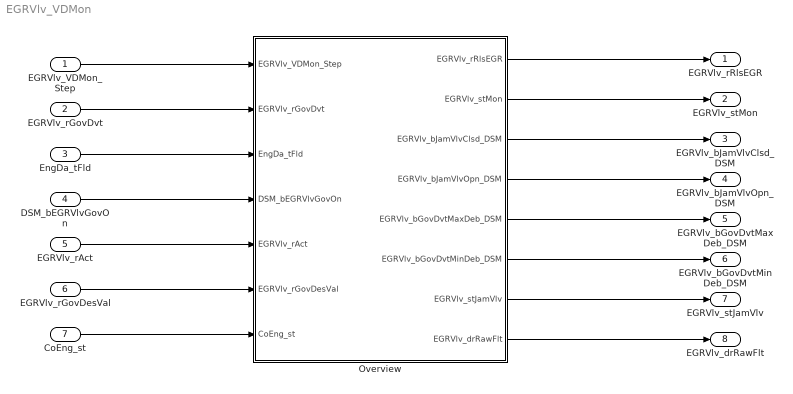
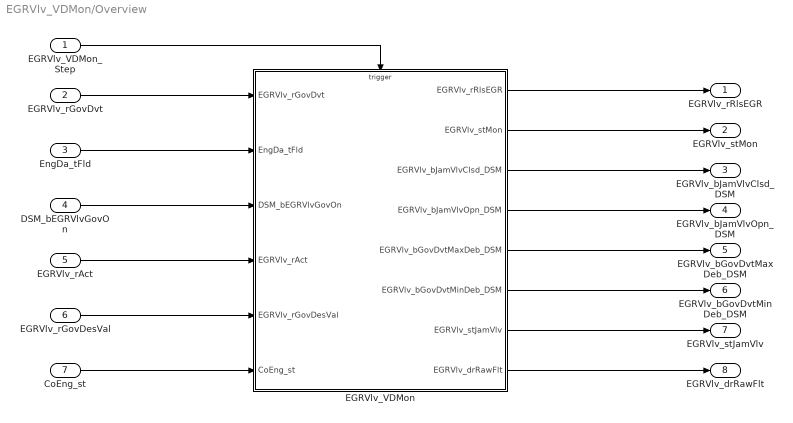
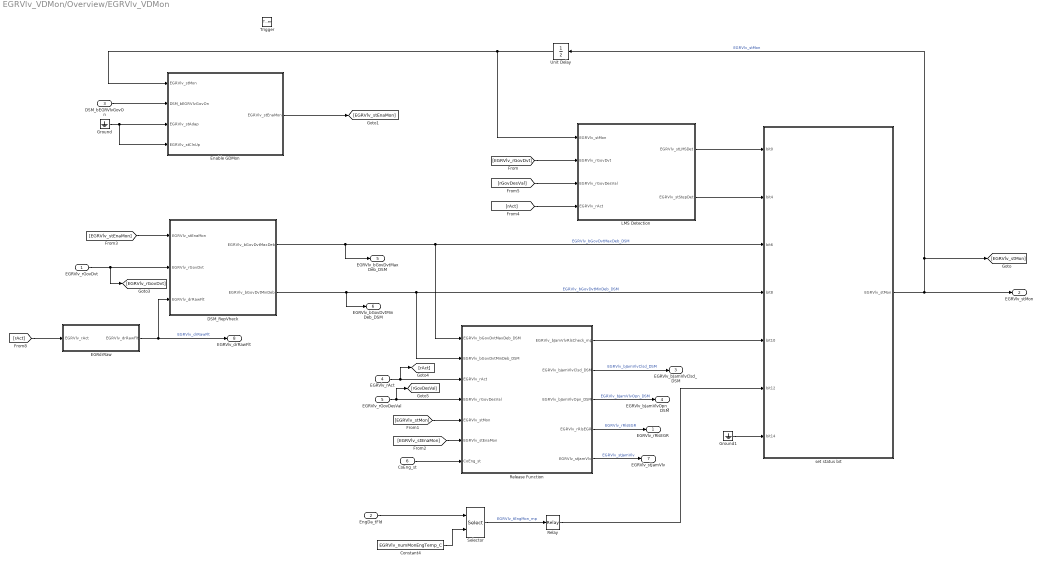
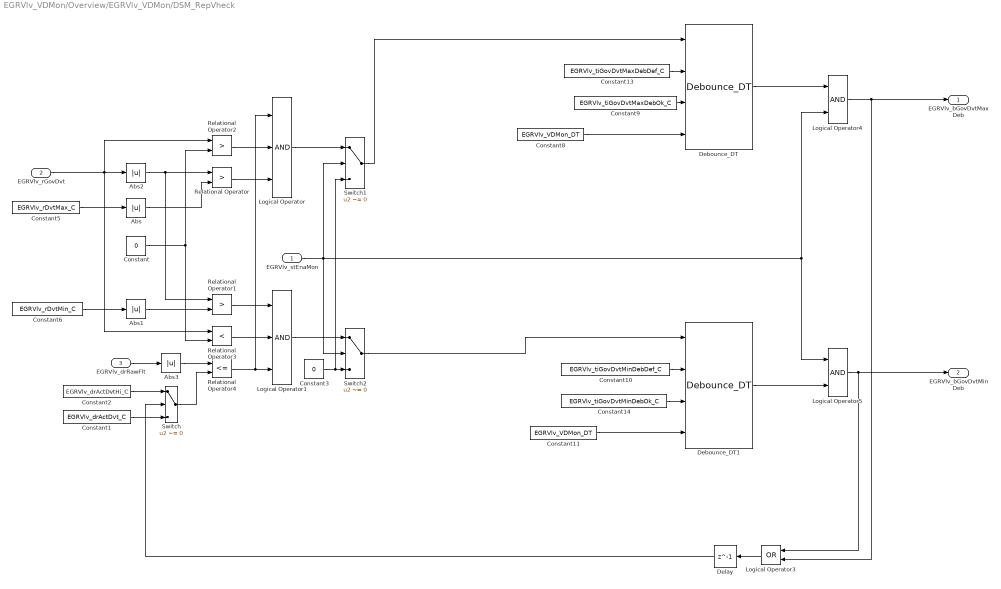
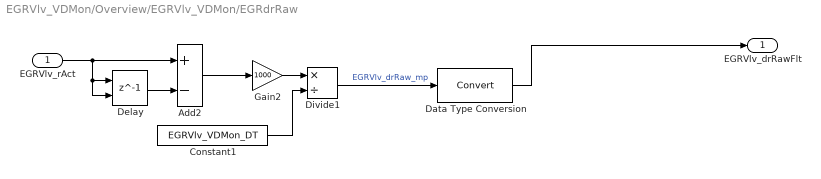
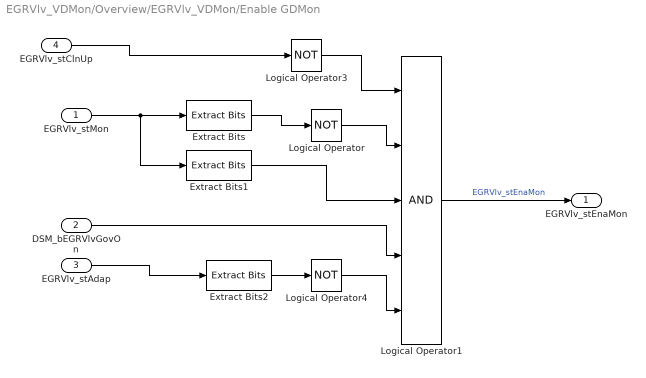
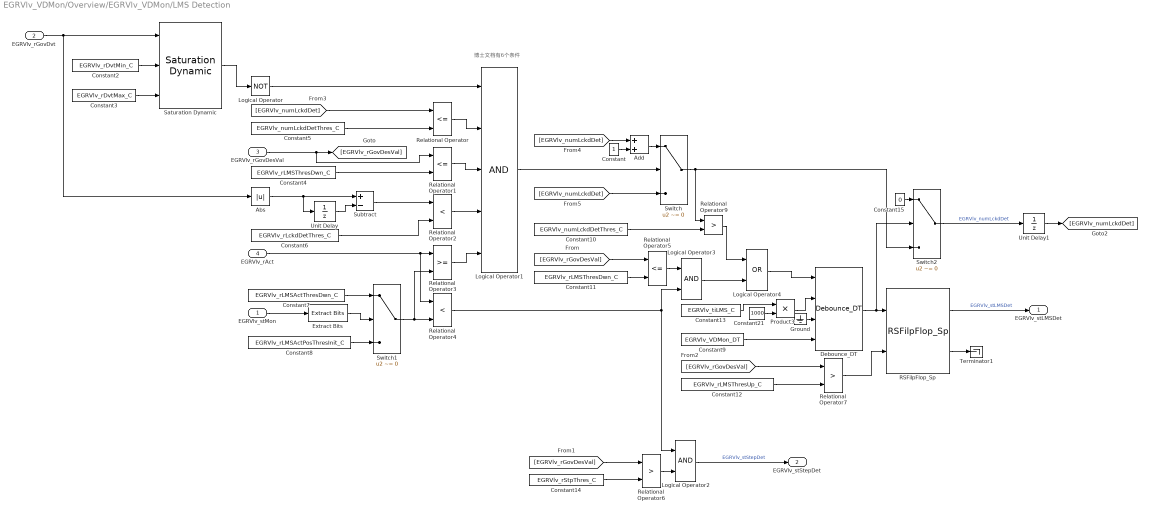
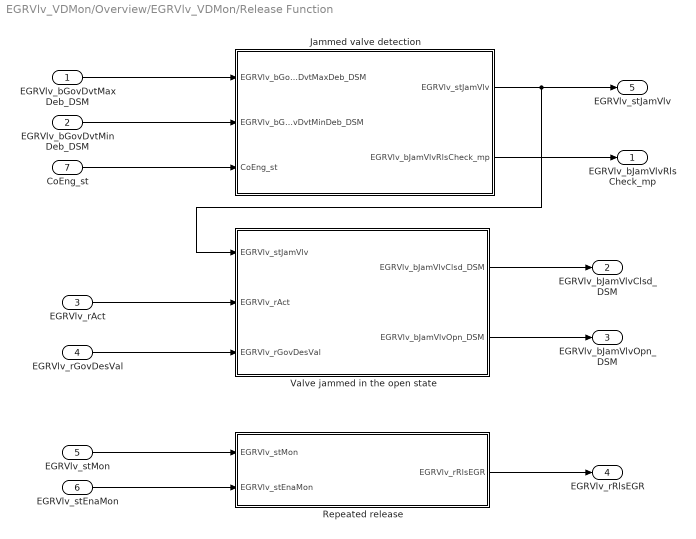
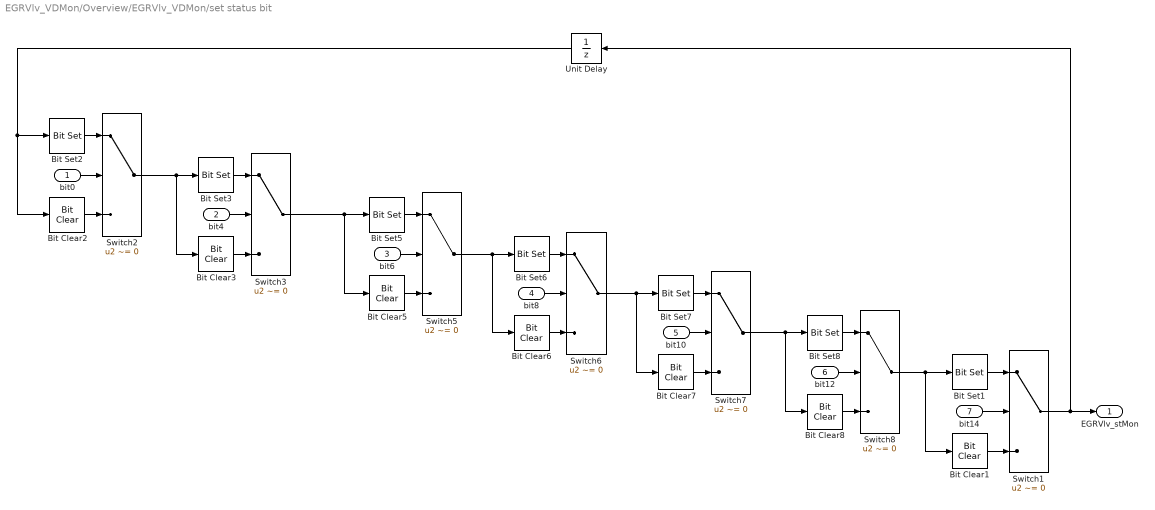
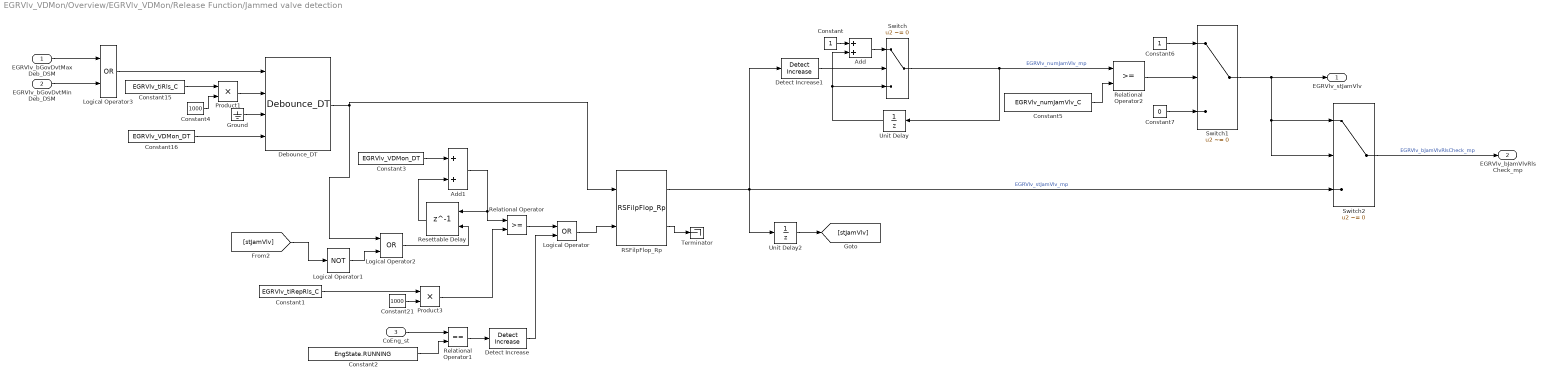
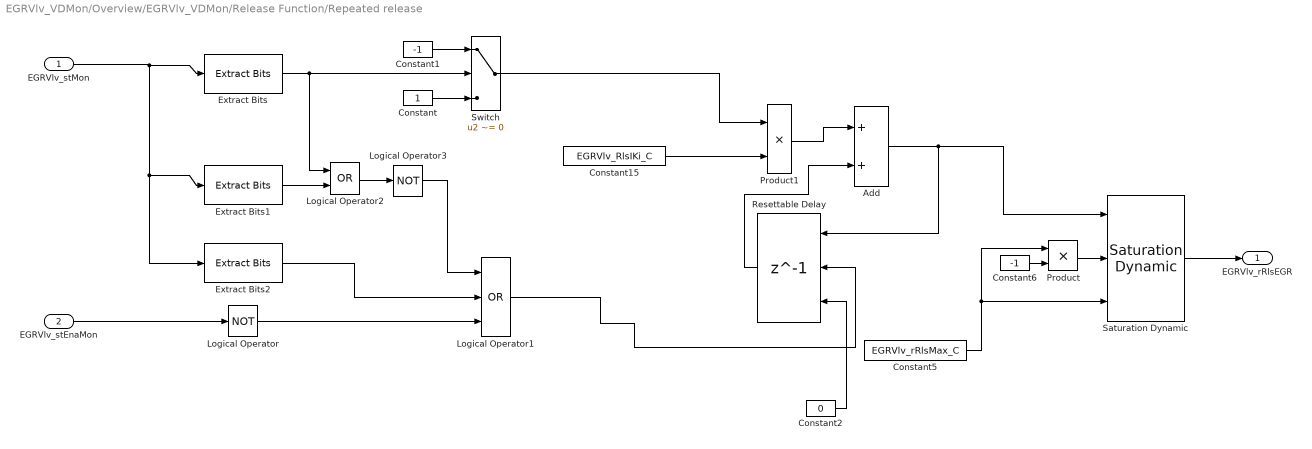
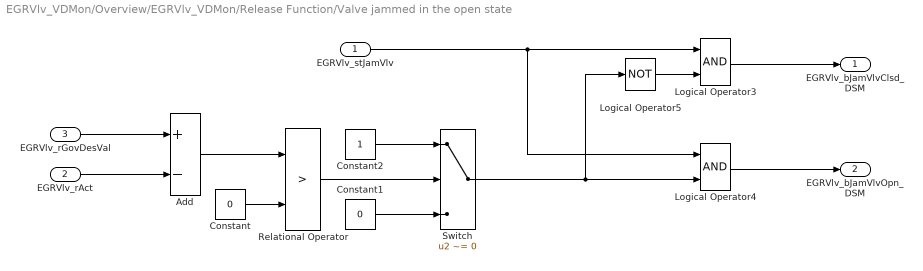
/*
 * File: EGRVlv_VDMon.c
 *
 * Code generated for Simulink model 'EGRVlv_VDMon'.
 *
 * Model version                  : 1.69
 * Simulink Coder version         : 9.4 (R2020b) 29-Jul-2020
 * C/C++ source code generated on : Thu Feb  4 09:39:35 2021
 *
 * Target selection: ert.tlc
 * Embedded hardware selection: ARM Compatible->ARM Cortex
 * Code generation objectives: Unspecified
 * Validation result: Not run
 */

#include "EGRVlv_VDMon.h"
#include "div_s32_floor.h"
#include "mul_s32_loSR_sat.h"
#ifndef UCHAR_MAX
#include <limits.h>
#endif

#if ( UCHAR_MAX != (0xFFU) ) || ( SCHAR_MAX != (0x7F) )
#error Code was generated for compiler with different sized uchar/char. \
Consider adjusting Test hardware word size settings on the \
Hardware Implementation pane to match your compiler word sizes as \
defined in limits.h of the compiler. Alternatively, you can \
select the Test hardware is the same as production hardware option and \
select the Enable portable word sizes option on the Code Generation > \
Verification pane for ERT based targets, which will disable the \
preprocessor word size checks.
#endif

#if ( USHRT_MAX != (0xFFFFU) ) || ( SHRT_MAX != (0x7FFF) )
#error Code was generated for compiler with different sized ushort/short. \
Consider adjusting Test hardware word size settings on the \
Hardware Implementation pane to match your compiler word sizes as \
defined in limits.h of the compiler. Alternatively, you can \
select the Test hardware is the same as production hardware option and \
select the Enable portable word sizes option on the Code Generation > \
Verification pane for ERT based targets, which will disable the \
preprocessor word size checks.
#endif

#if ( UINT_MAX != (0xFFFFFFFFU) ) || ( INT_MAX != (0x7FFFFFFF) )
#error Code was generated for compiler with different sized uint/int. \
Consider adjusting Test hardware word size settings on the \
Hardware Implementation pane to match your compiler word sizes as \
defined in limits.h of the compiler. Alternatively, you can \
select the Test hardware is the same as production hardware option and \
select the Enable portable word sizes option on the Code Generation > \
Verification pane for ERT based targets, which will disable the \
preprocessor word size checks.
#endif

#if ( ULONG_MAX != (0xFFFFFFFFU) ) || ( LONG_MAX != (0x7FFFFFFF) )
#error Code was generated for compiler with different sized ulong/long. \
Consider adjusting Test hardware word size settings on the \
Hardware Implementation pane to match your compiler word sizes as \
defined in limits.h of the compiler. Alternatively, you can \
select the Test hardware is the same as production hardware option and \
select the Enable portable word sizes option on the Code Generation > \
Verification pane for ERT based targets, which will disable the \
preprocessor word size checks.
#endif

/* Exported block signals */
State2 EGRVlv_stMon;                   /* '<S8>/Switch1'
                                        * State of system monitoring
                                        */
Temp_C EGRVlv_tEngMon_mp;              /* '<S2>/Selector'
                                        * Engine monitoring temperature
                                        */
DutyCycle EGRVlv_drRaw_mp;             /* '<S4>/Divide1'
                                        * EGR rate gradient calculated over current position
                                        */
DutyCycle EGRVlv_drRawFlt;             /* '<S4>/Data Type Conversion'
                                        * EGR rate gradient calculated over current position after PT1-filtering
                                        */
DutyCycle EGRVlv_rRlsEGR;              /* '<S28>/Switch2'
                                        * Additional control value to release a jammed valve
                                        */
State EGRVlv_numJamVlv_mp;             /* '<S18>/Switch'
                                        * The number of jammed valve releasing
                                        */
State EGRVlv_numLckdDet;               /* '<S6>/Switch2'
                                        * Number of tasks since constant governor deviation at LMS
                                        */
boolean_T EGRVlv_stEnaMon;             /* '<S5>/Logical Operator1'
                                        * Enable condition
                                        */
boolean_T EGRVlv_bGovDvtMinDeb_DSM;    /* '<S3>/Logical Operator5'
                                        * Status of EGRVlv_bGovDvtMinDeb
                                        */
boolean_T EGRVlv_stStepDet;            /* '<S6>/Logical Operator2'
                                        * Status of step detection
                                        */
boolean_T EGRVlv_bGovDvtMaxDeb_DSM;    /* '<S3>/Logical Operator4'
                                        * Status of EGRVlv_bGovDvtMaxDeb
                                        */
boolean_T EGRVlv_stJamVlv;             /* '<S18>/Switch1'
                                        * Status indicates that the valve is jammed
                                        */
boolean_T EGRVlv_bJamVlvRlsCheck_mp;   /* '<S18>/Switch2'
                                        * Set bit 10 of EGRVlv_stMon
                                        */
boolean_T EGRVlv_bJamVlvClsd_DSM;      /* '<S20>/Logical Operator3'
                                        * Status of EGRVlv_bJamVlvClsd
                                        */
boolean_T EGRVlv_bJamVlvOpn_DSM;       /* '<S20>/Logical Operator4'
                                        * Status of EGRVlv_bJamVlvOpn
                                        */

/* Invariant block signals (default storage) */
const ConstB_EGRVlv_VDMon_T EGRVlv_VDMon_ConstB = {
  0U,                                  /* '<S13>/Extract Desired Bits' */
  1,                                   /* '<S5>/Logical Operator3' */
  1                                    /* '<S5>/Logical Operator4' */
};

/* Block states (default storage) */
DW_EGRVlv_VDMon_T EGRVlv_VDMon_DW;

/* Previous zero-crossings (trigger) states */
PrevZCX_EGRVlv_VDMon_T EGRVlv_VDMon_PrevZCX;

/* Real-time model */
static RT_MODEL_EGRVlv_VDMon_T EGRVlv_VDMon_M_;
RT_MODEL_EGRVlv_VDMon_T *const EGRVlv_VDMon_M = &EGRVlv_VDMon_M_;

/* Model step function */
void EGRVlv_VDMon_Step(void)
{
  int32_T tmp;
  uint32_T q0;
  DutyCycle rtb_Abs;
  DutyCycle rtb_Abs2;
  DutyCycle rtb_Product1;
  State2 rtb_Switch2_p;
  State2 rtb_Switch3;
  int16_T rtb_ExtractDesiredBits_0;
  uint8_T rtb_ExtractDesiredBits;
  boolean_T rtb_RelationalOperator4;
  boolean_T rtb_Switch2_h;

  /* RootInportFunctionCallGenerator generated from: '<Root>/EGRVlv_VDMon_Step' incorporates:
   *  SubSystem: '<S1>/EGRVlv_VDMon'
   */
  /* Selector: '<S2>/Selector' incorporates:
   *  Constant: '<S2>/Constant4'
   *  Inport: '<Root>/EngDa_tFld'
   *
   * Block description for '<Root>/EngDa_tFld':
   *  Engine temperature field
   */
  EGRVlv_tEngMon_mp = EngDa_tFld[EGRVlv_numMonEngTemp_C];

  /* Relay: '<S2>/Relay' incorporates:
   *  Selector: '<S2>/Selector'
   */
  EGRVlv_VDMon_DW.Relay_Mode = ((EGRVlv_tEngMon_mp >= EGRVlv_tEngHi_C) ||
    ((EGRVlv_tEngMon_mp > EGRVlv_tEngLo_C) && EGRVlv_VDMon_DW.Relay_Mode));

  /* Logic: '<S5>/Logical Operator1' incorporates:
   *  DataTypeConversion: '<S11>/Extract Desired Bits'
   *  DataTypeConversion: '<S12>/Extract Desired Bits'
   *  Inport: '<Root>/DSM_bEGRVlvGovOn'
   *  Logic: '<S5>/Logical Operator'
   *  UnitDelay: '<S2>/Unit Delay'
   *
   * Block description for '<Root>/DSM_bEGRVlvGovOn':
   *  Status of FId_EGRVlvGovOn
   */
  EGRVlv_stEnaMon = (EGRVlv_VDMon_ConstB.LogicalOperator3 && (((uint32_T)
    EGRVlv_stMon >> 10 & 1U) == 0U) && (((uint32_T)EGRVlv_stMon >> 12 & 1U) !=
    0U) && DSM_bEGRVlvGovOn && EGRVlv_VDMon_ConstB.LogicalOperator4);

  /* Delay: '<S4>/Delay' incorporates:
   *  Inport: '<Root>/EGRVlv_rAct'
   *
   * Block description for '<Root>/EGRVlv_rAct':
   *  Actuatorposition
   */
  if (EGRVlv_VDMon_DW.icLoad != 0) {
    EGRVlv_VDMon_DW.Delay_DSTATE_o = EGRVlv_rAct;
  }

  /* Sum: '<S4>/Add2' incorporates:
   *  Delay: '<S4>/Delay'
   *  Inport: '<Root>/EGRVlv_rAct'
   *
   * Block description for '<Root>/EGRVlv_rAct':
   *  Actuatorposition
   */
  tmp = EGRVlv_rAct - EGRVlv_VDMon_DW.Delay_DSTATE_o;
  if (tmp > 32767) {
    tmp = 32767;
  } else {
    if (tmp < -32768) {
      tmp = -32768;
    }
  }

  /* Product: '<S4>/Divide1' incorporates:
   *  Gain: '<S4>/Gain2'
   *  Sum: '<S4>/Add2'
   */
  EGRVlv_drRaw_mp = (DutyCycle)(((int16_T)div_s32_floor(mul_s32_loSR_sat(32000 *
    tmp, 25, 4U), 640) * 5243) >> 12);

  /* DataTypeConversion: '<S4>/Data Type Conversion' incorporates:
   *  Product: '<S4>/Divide1'
   */
  EGRVlv_drRawFlt = EGRVlv_drRaw_mp;

  /* Abs: '<S3>/Abs3' incorporates:
   *  DataTypeConversion: '<S4>/Data Type Conversion'
   */
  if (EGRVlv_drRawFlt < 0) {
    rtb_ExtractDesiredBits_0 = (int16_T)-EGRVlv_drRawFlt;
  } else {
    rtb_ExtractDesiredBits_0 = EGRVlv_drRawFlt;
  }

  /* End of Abs: '<S3>/Abs3' */

  /* Switch: '<S3>/Switch' incorporates:
   *  Constant: '<S3>/Constant1'
   *  Constant: '<S3>/Constant2'
   *  Delay: '<S3>/Delay'
   */
  if (EGRVlv_VDMon_DW.Delay_DSTATE_m) {
    rtb_Abs = EGRVlv_drActDvtHi_C;
  } else {
    rtb_Abs = EGRVlv_drActDvt_C;
  }

  /* End of Switch: '<S3>/Switch' */

  /* RelationalOperator: '<S3>/Relational Operator4' */
  rtb_RelationalOperator4 = (rtb_ExtractDesiredBits_0 <= rtb_Abs);

  /* Abs: '<S3>/Abs2' incorporates:
   *  Inport: '<Root>/EGRVlv_rGovDvt'
   *
   * Block description for '<Root>/EGRVlv_rGovDvt':
   *  Control deviation
   */
  if (EGRVlv_rGovDvt < 0) {
    rtb_Abs2 = (DutyCycle)-EGRVlv_rGovDvt;
  } else {
    rtb_Abs2 = EGRVlv_rGovDvt;
  }

  /* End of Abs: '<S3>/Abs2' */

  /* Switch: '<S3>/Switch2' incorporates:
   *  Abs: '<S3>/Abs2'
   *  Constant: '<S3>/Constant3'
   *  Inport: '<Root>/EGRVlv_rGovDvt'
   *  Logic: '<S3>/Logical Operator1'
   *  RelationalOperator: '<S3>/Relational Operator1'
   *  RelationalOperator: '<S3>/Relational Operator3'
   *
   * Block description for '<Root>/EGRVlv_rGovDvt':
   *  Control deviation
   */
  if (EGRVlv_stEnaMon) {
    /* Abs: '<S3>/Abs1' incorporates:
     *  Constant: '<S3>/Constant6'
     */
    if (EGRVlv_rDvtMin_C < 0) {
      rtb_ExtractDesiredBits_0 = (int16_T)-EGRVlv_rDvtMin_C;
    } else {
      rtb_ExtractDesiredBits_0 = EGRVlv_rDvtMin_C;
    }

    /* End of Abs: '<S3>/Abs1' */
    rtb_Switch2_h = ((rtb_Abs2 > rtb_ExtractDesiredBits_0) && (EGRVlv_rGovDvt <
      0) && rtb_RelationalOperator4);
  } else {
    rtb_Switch2_h = false;
  }

  /* End of Switch: '<S3>/Switch2' */

  /* Delay: '<S10>/Delay1' */
  if (EGRVlv_VDMon_DW.icLoad_p != 0) {
    /* Switch: '<S10>/Switch1' */
    EGRVlv_VDMon_DW.Delay1_DSTATE = rtb_Switch2_h;
  }

  /* Delay: '<S10>/Delay' incorporates:
   *  Delay: '<S10>/Delay2'
   */
  if (EGRVlv_VDMon_DW.Delay2_DSTATE && (EGRVlv_VDMon_PrevZCX.Delay_Reset_ZCE !=
       1)) {
    /* MinMax: '<S10>/Min' */
    EGRVlv_VDMon_DW.Delay_DSTATE_h = 0U;
  }

  EGRVlv_VDMon_PrevZCX.Delay_Reset_ZCE = EGRVlv_VDMon_DW.Delay2_DSTATE;

  /* Switch: '<S10>/Switch2' incorporates:
   *  Delay: '<S10>/Delay'
   *  Delay: '<S10>/Delay1'
   *  MinMax: '<S10>/Min'
   *  RelationalOperator: '<S10>/Relational Operator1'
   */
  if (rtb_Switch2_h == EGRVlv_VDMon_DW.Delay1_DSTATE) {
    /* Sum: '<S10>/Add' incorporates:
     *  Constant: '<S3>/Constant11'
     *  Delay: '<S10>/Delay'
     */
    q0 = EGRVlv_VDMon_DW.Delay_DSTATE_h + 100U;
    if (EGRVlv_VDMon_DW.Delay_DSTATE_h + 100U > 65535U) {
      q0 = 65535U;
    }

    /* MinMax: '<S10>/Min' incorporates:
     *  Delay: '<S10>/Delay'
     *  Sum: '<S10>/Add'
     *  Switch: '<S10>/Switch2'
     */
    EGRVlv_VDMon_DW.Delay_DSTATE_h = (Debncd_ms)q0;
  } else {
    if (EGRVlv_VDMon_DW.Delay_DSTATE_h > 100) {
      /* MinMax: '<S10>/Min' incorporates:
       *  Delay: '<S10>/Delay'
       */
      rtb_Switch2_p = EGRVlv_VDMon_DW.Delay_DSTATE_h;
    } else {
      /* MinMax: '<S10>/Min' incorporates:
       *  Constant: '<S3>/Constant11'
       */
      rtb_Switch2_p = 100U;
    }

    /* Sum: '<S10>/Subtract' incorporates:
     *  Constant: '<S3>/Constant11'
     */
    tmp = rtb_Switch2_p - 100;

    /* MinMax: '<S10>/Min' incorporates:
     *  Constant: '<S3>/Constant11'
     *  Delay: '<S10>/Delay'
     */
    if (EGRVlv_VDMon_DW.Delay_DSTATE_h <= 100) {
      EGRVlv_VDMon_DW.Delay_DSTATE_h = 100U;
    }

    /* Sum: '<S10>/Subtract' incorporates:
     *  Constant: '<S3>/Constant11'
     */
    if (EGRVlv_VDMon_DW.Delay_DSTATE_h - 100 < 0) {
      tmp = 0;
    }

    /* MinMax: '<S10>/Min' incorporates:
     *  Delay: '<S10>/Delay'
     *  Sum: '<S10>/Subtract'
     *  Switch: '<S10>/Switch2'
     */
    EGRVlv_VDMon_DW.Delay_DSTATE_h = (Debncd_ms)tmp;
  }

  /* End of Switch: '<S10>/Switch2' */

  /* Logic: '<S10>/Logical Operator5' incorporates:
   *  Delay: '<S10>/Delay1'
   *  Logic: '<S10>/Logical Operator1'
   *  Switch: '<S10>/Switch1'
   */
  rtb_Switch2_h = !EGRVlv_VDMon_DW.Delay1_DSTATE;

  /* Logic: '<S10>/Logical Operator' incorporates:
   *  Constant: '<S3>/Constant10'
   *  Constant: '<S3>/Constant14'
   *  Delay: '<S10>/Delay'
   *  Delay: '<S10>/Delay1'
   *  Delay: '<S10>/Delay2'
   *  Logic: '<S10>/Logical Operator2'
   *  Logic: '<S10>/Logical Operator3'
   *  Logic: '<S10>/Logical Operator5'
   *  RelationalOperator: '<S10>/Relational Operator2'
   *  RelationalOperator: '<S10>/Relational Operator3'
   *  Switch: '<S10>/Switch2'
   */
  EGRVlv_VDMon_DW.Delay2_DSTATE = ((rtb_Switch2_h &&
    (EGRVlv_VDMon_DW.Delay_DSTATE_h >= EGRVlv_tiGovDvtMinDebDef_C)) ||
    (EGRVlv_VDMon_DW.Delay1_DSTATE && (EGRVlv_VDMon_DW.Delay_DSTATE_h >=
    EGRVlv_tiGovDvtMinDebOk_C)));

  /* Switch: '<S10>/Switch1' incorporates:
   *  Delay: '<S10>/Delay2'
   */
  if (EGRVlv_VDMon_DW.Delay2_DSTATE) {
    /* Switch: '<S10>/Switch1' */
    EGRVlv_VDMon_DW.Delay1_DSTATE = rtb_Switch2_h;
  }

  /* Logic: '<S3>/Logical Operator5' */
  EGRVlv_bGovDvtMinDeb_DSM = (EGRVlv_stEnaMon && EGRVlv_VDMon_DW.Delay1_DSTATE);

  /* Switch: '<S6>/Switch1' incorporates:
   *  Constant: '<S6>/Constant7'
   *  Constant: '<S6>/Constant8'
   *  DataTypeConversion: '<S15>/Extract Desired Bits'
   *  Product: '<S19>/Product1'
   *  UnitDelay: '<S2>/Unit Delay'
   */
  if (((uint32_T)EGRVlv_stMon >> 14 & 1U) != 0U) {
    rtb_Product1 = EGRVlv_rLMSActThresDwn_C;
  } else {
    rtb_Product1 = EGRVlv_rLMSActPosThresInit_C;
  }

  /* End of Switch: '<S6>/Switch1' */

  /* RelationalOperator: '<S6>/Relational Operator4' incorporates:
   *  Inport: '<Root>/EGRVlv_rAct'
   *  Product: '<S19>/Product1'
   *
   * Block description for '<Root>/EGRVlv_rAct':
   *  Actuatorposition
   */
  rtb_Switch2_h = (EGRVlv_rAct < rtb_Product1);

  /* Logic: '<S6>/Logical Operator2' incorporates:
   *  Constant: '<S6>/Constant14'
   *  Inport: '<Root>/EGRVlv_rGovDesVal'
   *  RelationalOperator: '<S6>/Relational Operator6'
   *
   * Block description for '<Root>/EGRVlv_rGovDesVal':
   *  Internal desired value for governor
   */
  EGRVlv_stStepDet = (rtb_Switch2_h && (EGRVlv_rGovDesVal > EGRVlv_rStpThres_C));

  /* Abs: '<S6>/Abs' incorporates:
   *  Inport: '<Root>/EGRVlv_rGovDvt'
   *
   * Block description for '<Root>/EGRVlv_rGovDvt':
   *  Control deviation
   */
  if (EGRVlv_rGovDvt < 0) {
    rtb_Abs = (DutyCycle)-EGRVlv_rGovDvt;
  } else {
    rtb_Abs = EGRVlv_rGovDvt;
  }

  /* End of Abs: '<S6>/Abs' */

  /* Sum: '<S6>/Subtract' incorporates:
   *  Abs: '<S6>/Abs'
   *  UnitDelay: '<S6>/Unit Delay'
   */
  tmp = rtb_Abs - EGRVlv_VDMon_DW.UnitDelay_DSTATE_f;
  if (tmp > 32767) {
    tmp = 32767;
  } else {
    if (tmp < -32768) {
      tmp = -32768;
    }
  }

  /* Switch: '<S17>/Switch2' incorporates:
   *  Constant: '<S6>/Constant2'
   *  Constant: '<S6>/Constant3'
   *  Inport: '<Root>/EGRVlv_rGovDvt'
   *  RelationalOperator: '<S17>/LowerRelop1'
   *  RelationalOperator: '<S17>/UpperRelop'
   *  Switch: '<S17>/Switch'
   *
   * Block description for '<Root>/EGRVlv_rGovDvt':
   *  Control deviation
   */
  if (EGRVlv_rDvtMin_C > EGRVlv_rGovDvt) {
    rtb_ExtractDesiredBits_0 = EGRVlv_rGovDvt;
  } else if (EGRVlv_rDvtMin_C < EGRVlv_rDvtMax_C) {
    /* Switch: '<S17>/Switch' incorporates:
     *  Constant: '<S6>/Constant3'
     */
    rtb_ExtractDesiredBits_0 = EGRVlv_rDvtMax_C;
  } else {
    rtb_ExtractDesiredBits_0 = EGRVlv_rDvtMin_C;
  }

  /* End of Switch: '<S17>/Switch2' */

  /* Switch: '<S6>/Switch' incorporates:
   *  Constant: '<S6>/Constant4'
   *  Constant: '<S6>/Constant5'
   *  Constant: '<S6>/Constant6'
   *  Inport: '<Root>/EGRVlv_rAct'
   *  Inport: '<Root>/EGRVlv_rGovDesVal'
   *  Logic: '<S6>/Logical Operator'
   *  Logic: '<S6>/Logical Operator1'
   *  Product: '<S19>/Product1'
   *  RelationalOperator: '<S6>/Relational Operator'
   *  RelationalOperator: '<S6>/Relational Operator1'
   *  RelationalOperator: '<S6>/Relational Operator2'
   *  RelationalOperator: '<S6>/Relational Operator3'
   *  Sum: '<S6>/Subtract'
   *  UnitDelay: '<S6>/Unit Delay1'
   *
   * Block description for '<Root>/EGRVlv_rAct':
   *  Actuatorposition
   *
   * Block description for '<Root>/EGRVlv_rGovDesVal':
   *  Internal desired value for governor
   */
  if ((rtb_ExtractDesiredBits_0 == 0) && (EGRVlv_numLckdDet <=
       EGRVlv_numLckdDetThres_C) && (EGRVlv_rGovDesVal <= EGRVlv_rLMSThresDwn_C)
      && (tmp < EGRVlv_rLckdDetThres_C) && (EGRVlv_rAct >= rtb_Product1)) {
    /* Sum: '<S6>/Add' incorporates:
     *  Constant: '<S6>/Constant'
     */
    tmp = (int32_T)(EGRVlv_numLckdDet + 1U);
    if (EGRVlv_numLckdDet + 1U > 255U) {
      tmp = 255;
    }

    /* Switch: '<S6>/Switch' incorporates:
     *  Sum: '<S6>/Add'
     */
    EGRVlv_numLckdDet = (State)tmp;
  }

  /* End of Switch: '<S6>/Switch' */

  /* Logic: '<S6>/Logical Operator4' incorporates:
   *  Constant: '<S6>/Constant10'
   *  Constant: '<S6>/Constant11'
   *  Inport: '<Root>/EGRVlv_rGovDesVal'
   *  Logic: '<S6>/Logical Operator3'
   *  RelationalOperator: '<S6>/Relational Operator5'
   *  RelationalOperator: '<S6>/Relational Operator9'
   *
   * Block description for '<Root>/EGRVlv_rGovDesVal':
   *  Internal desired value for governor
   */
  rtb_Switch2_h = ((EGRVlv_numLckdDet > EGRVlv_numLckdDetThres_C) ||
                   ((EGRVlv_rGovDesVal <= EGRVlv_rLMSThresDwn_C) &&
                    rtb_Switch2_h));

  /* Delay: '<S14>/Delay1' */
  if (EGRVlv_VDMon_DW.icLoad_e != 0) {
    /* Switch: '<S14>/Switch1' */
    EGRVlv_VDMon_DW.Delay1_DSTATE_n = rtb_Switch2_h;
  }

  /* Delay: '<S14>/Delay' incorporates:
   *  Delay: '<S14>/Delay2'
   */
  if (EGRVlv_VDMon_DW.Delay2_DSTATE_g && (EGRVlv_VDMon_PrevZCX.Delay_Reset_ZCE_f
       != 1)) {
    EGRVlv_VDMon_DW.Delay_DSTATE = 0U;
  }

  EGRVlv_VDMon_PrevZCX.Delay_Reset_ZCE_f = EGRVlv_VDMon_DW.Delay2_DSTATE_g;

  /* Switch: '<S14>/Switch2' incorporates:
   *  Delay: '<S14>/Delay'
   *  Delay: '<S14>/Delay1'
   *  MinMax: '<S14>/Min'
   *  RelationalOperator: '<S14>/Relational Operator1'
   *  Sum: '<S14>/Add'
   */
  if (rtb_Switch2_h == EGRVlv_VDMon_DW.Delay1_DSTATE_n) {
    /* Sum: '<S14>/Add' incorporates:
     *  Constant: '<S6>/Constant9'
     *  Delay: '<S14>/Delay'
     */
    q0 = EGRVlv_VDMon_DW.Delay_DSTATE + /*MW:OvSatOk*/ 10U;
    if (EGRVlv_VDMon_DW.Delay_DSTATE + 10U < EGRVlv_VDMon_DW.Delay_DSTATE) {
      q0 = MAX_uint32_T;
    }

    EGRVlv_VDMon_DW.Delay_DSTATE = q0;
  } else {
    if (EGRVlv_VDMon_DW.Delay_DSTATE > 10U) {
      /* MinMax: '<S14>/Min' incorporates:
       *  Delay: '<S14>/Delay'
       *  Sum: '<S14>/Subtract'
       */
      q0 = EGRVlv_VDMon_DW.Delay_DSTATE;
    } else {
      /* Sum: '<S14>/Subtract' incorporates:
       *  MinMax: '<S14>/Min'
       */
      q0 = 10U;
    }

    /* Delay: '<S14>/Delay' incorporates:
     *  Constant: '<S6>/Constant9'
     *  Sum: '<S14>/Subtract'
     */
    EGRVlv_VDMon_DW.Delay_DSTATE = q0 - /*MW:OvSatOk*/ 10U;

    /* Sum: '<S14>/Subtract' incorporates:
     *  Constant: '<S6>/Constant9'
     */
    if (q0 - 10U > q0) {
      /* Delay: '<S14>/Delay' */
      EGRVlv_VDMon_DW.Delay_DSTATE = 0U;
    }
  }

  /* End of Switch: '<S14>/Switch2' */

  /* Product: '<S6>/Product3' incorporates:
   *  Constant: '<S6>/Constant13'
   *  Constant: '<S6>/Constant21'
   */
  tmp = EGRVlv_tiLMS_C * 1000;
  if (tmp < 0) {
    tmp = 0;
  }

  /* Logic: '<S14>/Logical Operator' incorporates:
   *  Delay: '<S14>/Delay'
   *  Delay: '<S14>/Delay1'
   *  Delay: '<S14>/Delay2'
   *  Logic: '<S14>/Logical Operator2'
   *  Logic: '<S14>/Logical Operator5'
   *  Product: '<S6>/Product3'
   *  RelationalOperator: '<S14>/Relational Operator2'
   */
  EGRVlv_VDMon_DW.Delay2_DSTATE_g = (((!EGRVlv_VDMon_DW.Delay1_DSTATE_n) &&
    (EGRVlv_VDMon_DW.Delay_DSTATE >= (uint32_T)tmp)) ||
    EGRVlv_VDMon_DW.Delay1_DSTATE_n);

  /* Switch: '<S14>/Switch1' incorporates:
   *  Delay: '<S14>/Delay2'
   */
  if (EGRVlv_VDMon_DW.Delay2_DSTATE_g) {
    /* Switch: '<S14>/Switch1' incorporates:
     *  Delay: '<S14>/Delay1'
     *  Logic: '<S14>/Logical Operator1'
     */
    EGRVlv_VDMon_DW.Delay1_DSTATE_n = !EGRVlv_VDMon_DW.Delay1_DSTATE_n;
  }

  /* End of Switch: '<S14>/Switch1' */

  /* Switch: '<S16>/Switch' incorporates:
   *  Constant: '<S16>/Constant'
   *  Constant: '<S6>/Constant12'
   *  Inport: '<Root>/EGRVlv_rGovDesVal'
   *  RelationalOperator: '<S6>/Relational Operator7'
   *  UnitDelay: '<S16>/Unit Delay'
   *
   * Block description for '<Root>/EGRVlv_rGovDesVal':
   *  Internal desired value for governor
   */
  if (EGRVlv_VDMon_DW.Delay1_DSTATE_n) {
    EGRVlv_VDMon_DW.UnitDelay_DSTATE_n = true;
  } else {
    EGRVlv_VDMon_DW.UnitDelay_DSTATE_n = ((EGRVlv_rGovDesVal <=
      EGRVlv_rLMSThresUp_C) && EGRVlv_VDMon_DW.UnitDelay_DSTATE_n);
  }

  /* End of Switch: '<S16>/Switch' */

  /* Switch: '<S8>/Switch2' incorporates:
   *  S-Function (sfix_bitop): '<S30>/FixPt Bitwise Operator3'
   *  S-Function (sfix_bitop): '<S30>/FixPt Bitwise Operator4'
   *  S-Function (sfix_bitop): '<S30>/FixPt Bitwise Operator5'
   *  S-Function (sfix_bitop): '<S37>/FixPt Bitwise Operator1'
   *  UnitDelay: '<S16>/Unit Delay'
   *  UnitDelay: '<S8>/Unit Delay'
   */
  if (EGRVlv_VDMon_DW.UnitDelay_DSTATE_n) {
    rtb_Switch2_p = (State2)(EGRVlv_VDMon_DW.UnitDelay_DSTATE_l | 1);
  } else {
    rtb_Switch2_p = (State2)~(State2)((State2)
      ~EGRVlv_VDMon_DW.UnitDelay_DSTATE_l | 1);
  }

  /* End of Switch: '<S8>/Switch2' */

  /* Switch: '<S8>/Switch3' incorporates:
   *  S-Function (sfix_bitop): '<S31>/FixPt Bitwise Operator3'
   *  S-Function (sfix_bitop): '<S31>/FixPt Bitwise Operator4'
   *  S-Function (sfix_bitop): '<S31>/FixPt Bitwise Operator5'
   *  S-Function (sfix_bitop): '<S38>/FixPt Bitwise Operator1'
   */
  if (EGRVlv_stStepDet) {
    rtb_Switch3 = (State2)(rtb_Switch2_p | 16);
  } else {
    rtb_Switch3 = (State2)~(State2)((State2)~rtb_Switch2_p | 16);
  }

  /* End of Switch: '<S8>/Switch3' */

  /* Switch: '<S3>/Switch1' incorporates:
   *  Abs: '<S3>/Abs2'
   *  Constant: '<S3>/Constant3'
   *  Inport: '<Root>/EGRVlv_rGovDvt'
   *  Logic: '<S3>/Logical Operator'
   *  RelationalOperator: '<S3>/Relational Operator'
   *  RelationalOperator: '<S3>/Relational Operator2'
   *
   * Block description for '<Root>/EGRVlv_rGovDvt':
   *  Control deviation
   */
  if (EGRVlv_stEnaMon) {
    /* Abs: '<S3>/Abs' incorporates:
     *  Constant: '<S3>/Constant5'
     */
    if (EGRVlv_rDvtMax_C < 0) {
      rtb_ExtractDesiredBits_0 = (int16_T)-EGRVlv_rDvtMax_C;
    } else {
      rtb_ExtractDesiredBits_0 = EGRVlv_rDvtMax_C;
    }

    /* End of Abs: '<S3>/Abs' */
    rtb_Switch2_h = (rtb_RelationalOperator4 && (EGRVlv_rGovDvt > 0) &&
                     (rtb_Abs2 > rtb_ExtractDesiredBits_0));
  } else {
    rtb_Switch2_h = false;
  }

  /* End of Switch: '<S3>/Switch1' */

  /* Delay: '<S9>/Delay1' */
  if (EGRVlv_VDMon_DW.icLoad_j != 0) {
    /* Switch: '<S9>/Switch1' */
    EGRVlv_VDMon_DW.Delay1_DSTATE_c = rtb_Switch2_h;
  }

  /* Delay: '<S9>/Delay' incorporates:
   *  Delay: '<S9>/Delay2'
   */
  if (EGRVlv_VDMon_DW.Delay2_DSTATE_m && (EGRVlv_VDMon_PrevZCX.Delay_Reset_ZCE_k
       != 1)) {
    /* MinMax: '<S9>/Min' */
    EGRVlv_VDMon_DW.Delay_DSTATE_o5 = 0U;
  }

  EGRVlv_VDMon_PrevZCX.Delay_Reset_ZCE_k = EGRVlv_VDMon_DW.Delay2_DSTATE_m;

  /* Switch: '<S9>/Switch2' incorporates:
   *  Delay: '<S9>/Delay'
   *  Delay: '<S9>/Delay1'
   *  MinMax: '<S9>/Min'
   *  RelationalOperator: '<S9>/Relational Operator1'
   */
  if (rtb_Switch2_h == EGRVlv_VDMon_DW.Delay1_DSTATE_c) {
    /* Sum: '<S9>/Add' incorporates:
     *  Constant: '<S3>/Constant8'
     *  Delay: '<S9>/Delay'
     */
    q0 = EGRVlv_VDMon_DW.Delay_DSTATE_o5 + 100U;
    if (EGRVlv_VDMon_DW.Delay_DSTATE_o5 + 100U > 65535U) {
      q0 = 65535U;
    }

    /* MinMax: '<S9>/Min' incorporates:
     *  Delay: '<S9>/Delay'
     *  Sum: '<S9>/Add'
     *  Switch: '<S9>/Switch2'
     */
    EGRVlv_VDMon_DW.Delay_DSTATE_o5 = (Debncd_ms)q0;
  } else {
    if (EGRVlv_VDMon_DW.Delay_DSTATE_o5 > 100) {
      /* MinMax: '<S9>/Min' incorporates:
       *  Delay: '<S9>/Delay'
       */
      rtb_Switch2_p = EGRVlv_VDMon_DW.Delay_DSTATE_o5;
    } else {
      /* MinMax: '<S9>/Min' incorporates:
       *  Constant: '<S3>/Constant8'
       */
      rtb_Switch2_p = 100U;
    }

    /* Sum: '<S9>/Subtract' incorporates:
     *  Constant: '<S3>/Constant8'
     */
    tmp = rtb_Switch2_p - 100;

    /* MinMax: '<S9>/Min' incorporates:
     *  Constant: '<S3>/Constant8'
     *  Delay: '<S9>/Delay'
     */
    if (EGRVlv_VDMon_DW.Delay_DSTATE_o5 <= 100) {
      EGRVlv_VDMon_DW.Delay_DSTATE_o5 = 100U;
    }

    /* Sum: '<S9>/Subtract' incorporates:
     *  Constant: '<S3>/Constant8'
     */
    if (EGRVlv_VDMon_DW.Delay_DSTATE_o5 - 100 < 0) {
      tmp = 0;
    }

    /* MinMax: '<S9>/Min' incorporates:
     *  Delay: '<S9>/Delay'
     *  Sum: '<S9>/Subtract'
     *  Switch: '<S9>/Switch2'
     */
    EGRVlv_VDMon_DW.Delay_DSTATE_o5 = (Debncd_ms)tmp;
  }

  /* End of Switch: '<S9>/Switch2' */

  /* Logic: '<S9>/Logical Operator5' incorporates:
   *  Delay: '<S9>/Delay1'
   *  Logic: '<S9>/Logical Operator1'
   *  Switch: '<S9>/Switch1'
   */
  rtb_Switch2_h = !EGRVlv_VDMon_DW.Delay1_DSTATE_c;

  /* Logic: '<S9>/Logical Operator' incorporates:
   *  Constant: '<S3>/Constant13'
   *  Constant: '<S3>/Constant9'
   *  Delay: '<S9>/Delay'
   *  Delay: '<S9>/Delay1'
   *  Delay: '<S9>/Delay2'
   *  Logic: '<S9>/Logical Operator2'
   *  Logic: '<S9>/Logical Operator3'
   *  Logic: '<S9>/Logical Operator5'
   *  RelationalOperator: '<S9>/Relational Operator2'
   *  RelationalOperator: '<S9>/Relational Operator3'
   *  Switch: '<S9>/Switch2'
   */
  EGRVlv_VDMon_DW.Delay2_DSTATE_m = ((rtb_Switch2_h &&
    (EGRVlv_VDMon_DW.Delay_DSTATE_o5 >= EGRVlv_tiGovDvtMaxDebDef_C)) ||
    (EGRVlv_VDMon_DW.Delay1_DSTATE_c && (EGRVlv_VDMon_DW.Delay_DSTATE_o5 >=
    EGRVlv_tiGovDvtMaxDebOk_C)));

  /* Switch: '<S9>/Switch1' incorporates:
   *  Delay: '<S9>/Delay2'
   */
  if (EGRVlv_VDMon_DW.Delay2_DSTATE_m) {
    /* Switch: '<S9>/Switch1' */
    EGRVlv_VDMon_DW.Delay1_DSTATE_c = rtb_Switch2_h;
  }

  /* Logic: '<S3>/Logical Operator4' */
  EGRVlv_bGovDvtMaxDeb_DSM = (EGRVlv_VDMon_DW.Delay1_DSTATE_c && EGRVlv_stEnaMon);

  /* Switch: '<S8>/Switch5' incorporates:
   *  S-Function (sfix_bitop): '<S32>/FixPt Bitwise Operator3'
   *  S-Function (sfix_bitop): '<S32>/FixPt Bitwise Operator4'
   *  S-Function (sfix_bitop): '<S32>/FixPt Bitwise Operator5'
   *  S-Function (sfix_bitop): '<S39>/FixPt Bitwise Operator1'
   */
  if (EGRVlv_bGovDvtMaxDeb_DSM) {
    rtb_Switch2_p = (State2)(rtb_Switch3 | 64);
  } else {
    rtb_Switch2_p = (State2)~(State2)((State2)~rtb_Switch3 | 64);
  }

  /* End of Switch: '<S8>/Switch5' */

  /* Switch: '<S8>/Switch6' incorporates:
   *  S-Function (sfix_bitop): '<S33>/FixPt Bitwise Operator3'
   *  S-Function (sfix_bitop): '<S33>/FixPt Bitwise Operator4'
   *  S-Function (sfix_bitop): '<S33>/FixPt Bitwise Operator5'
   *  S-Function (sfix_bitop): '<S40>/FixPt Bitwise Operator1'
   */
  if (EGRVlv_bGovDvtMinDeb_DSM) {
    rtb_Switch2_p = (State2)(rtb_Switch2_p | 256);
  } else {
    rtb_Switch2_p = (State2)~(State2)((State2)~rtb_Switch2_p | 256);
  }

  /* End of Switch: '<S8>/Switch6' */

  /* UnitDelay: '<S22>/Delay Input1'
   *
   * Block description for '<S22>/Delay Input1':
   *
   *  Store in Global RAM
   */
  rtb_Switch2_h = EGRVlv_VDMon_DW.DelayInput1_DSTATE;

  /* RelationalOperator: '<S18>/Relational Operator1' incorporates:
   *  Constant: '<S18>/Constant2'
   *  Inport: '<Root>/CoEng_st'
   *  UnitDelay: '<S22>/Delay Input1'
   *
   * Block description for '<Root>/CoEng_st':
   *  Engine coordinator state
   *
   * Block description for '<S22>/Delay Input1':
   *
   *  Store in Global RAM
   */
  EGRVlv_VDMon_DW.DelayInput1_DSTATE = (CoEng_st == EngState_RUNNING);

  /* Logic: '<S18>/Logical Operator3' */
  rtb_RelationalOperator4 = (EGRVlv_bGovDvtMaxDeb_DSM ||
    EGRVlv_bGovDvtMinDeb_DSM);

  /* Delay: '<S21>/Delay1' */
  if (EGRVlv_VDMon_DW.icLoad_h != 0) {
    /* Switch: '<S21>/Switch1' */
    EGRVlv_VDMon_DW.Delay1_DSTATE_d = rtb_RelationalOperator4;
  }

  /* Delay: '<S21>/Delay' incorporates:
   *  Delay: '<S21>/Delay2'
   */
  if (EGRVlv_VDMon_DW.Delay2_DSTATE_j && (EGRVlv_VDMon_PrevZCX.Delay_Reset_ZCE_d
       != 1)) {
    EGRVlv_VDMon_DW.Delay_DSTATE_b = 0U;
  }

  EGRVlv_VDMon_PrevZCX.Delay_Reset_ZCE_d = EGRVlv_VDMon_DW.Delay2_DSTATE_j;

  /* Switch: '<S21>/Switch2' incorporates:
   *  Delay: '<S21>/Delay'
   *  Delay: '<S21>/Delay1'
   *  MinMax: '<S21>/Min'
   *  RelationalOperator: '<S21>/Relational Operator1'
   *  Sum: '<S21>/Add'
   */
  if (rtb_RelationalOperator4 == EGRVlv_VDMon_DW.Delay1_DSTATE_d) {
    /* Sum: '<S21>/Add' incorporates:
     *  Constant: '<S18>/Constant16'
     *  Delay: '<S21>/Delay'
     */
    q0 = EGRVlv_VDMon_DW.Delay_DSTATE_b + /*MW:OvSatOk*/ 10U;
    if (EGRVlv_VDMon_DW.Delay_DSTATE_b + 10U < EGRVlv_VDMon_DW.Delay_DSTATE_b) {
      q0 = MAX_uint32_T;
    }

    EGRVlv_VDMon_DW.Delay_DSTATE_b = q0;
  } else {
    if (EGRVlv_VDMon_DW.Delay_DSTATE_b > 10U) {
      /* MinMax: '<S21>/Min' incorporates:
       *  Delay: '<S21>/Delay'
       *  Sum: '<S21>/Subtract'
       */
      q0 = EGRVlv_VDMon_DW.Delay_DSTATE_b;
    } else {
      /* Sum: '<S21>/Subtract' incorporates:
       *  MinMax: '<S21>/Min'
       */
      q0 = 10U;
    }

    /* Delay: '<S21>/Delay' incorporates:
     *  Constant: '<S18>/Constant16'
     *  Sum: '<S21>/Subtract'
     */
    EGRVlv_VDMon_DW.Delay_DSTATE_b = q0 - /*MW:OvSatOk*/ 10U;

    /* Sum: '<S21>/Subtract' incorporates:
     *  Constant: '<S18>/Constant16'
     */
    if (q0 - 10U > q0) {
      /* Delay: '<S21>/Delay' */
      EGRVlv_VDMon_DW.Delay_DSTATE_b = 0U;
    }
  }

  /* End of Switch: '<S21>/Switch2' */

  /* Product: '<S18>/Product1' incorporates:
   *  Constant: '<S18>/Constant15'
   *  Constant: '<S18>/Constant4'
   */
  tmp = EGRVlv_tiRls_C * 1000;
  if (tmp < 0) {
    tmp = 0;
  }

  /* Logic: '<S21>/Logical Operator5' incorporates:
   *  Delay: '<S21>/Delay1'
   *  Logic: '<S21>/Logical Operator1'
   *  Switch: '<S21>/Switch1'
   */
  rtb_RelationalOperator4 = !EGRVlv_VDMon_DW.Delay1_DSTATE_d;

  /* Logic: '<S21>/Logical Operator' incorporates:
   *  Delay: '<S21>/Delay'
   *  Delay: '<S21>/Delay1'
   *  Delay: '<S21>/Delay2'
   *  Logic: '<S21>/Logical Operator2'
   *  Logic: '<S21>/Logical Operator5'
   *  Product: '<S18>/Product1'
   *  RelationalOperator: '<S21>/Relational Operator2'
   */
  EGRVlv_VDMon_DW.Delay2_DSTATE_j = ((rtb_RelationalOperator4 &&
    (EGRVlv_VDMon_DW.Delay_DSTATE_b >= (uint32_T)tmp)) ||
    EGRVlv_VDMon_DW.Delay1_DSTATE_d);

  /* Switch: '<S21>/Switch1' incorporates:
   *  Delay: '<S21>/Delay2'
   */
  if (EGRVlv_VDMon_DW.Delay2_DSTATE_j) {
    /* Switch: '<S21>/Switch1' */
    EGRVlv_VDMon_DW.Delay1_DSTATE_d = rtb_RelationalOperator4;
  }

  /* Logic: '<S18>/Logical Operator2' incorporates:
   *  Logic: '<S18>/Logical Operator1'
   *  UnitDelay: '<S18>/Unit Delay2'
   */
  rtb_RelationalOperator4 = (EGRVlv_VDMon_DW.Delay1_DSTATE_d ||
    (!EGRVlv_VDMon_DW.UnitDelay2_DSTATE));

  /* Delay: '<S18>/Resettable Delay' */
  if (rtb_RelationalOperator4 && (EGRVlv_VDMon_PrevZCX.ResettableDelay_Reset_ZCE
       != 1)) {
    EGRVlv_VDMon_DW.ResettableDelay_DSTATE = 0.0;
  }

  EGRVlv_VDMon_PrevZCX.ResettableDelay_Reset_ZCE = rtb_RelationalOperator4;

  /* Sum: '<S18>/Add1' incorporates:
   *  Constant: '<S18>/Constant3'
   *  Delay: '<S18>/Resettable Delay'
   */
  EGRVlv_VDMon_DW.ResettableDelay_DSTATE += 10.0;

  /* Product: '<S18>/Product3' incorporates:
   *  Constant: '<S18>/Constant1'
   *  Constant: '<S18>/Constant21'
   */
  tmp = EGRVlv_tiRepRls_C * 1000;
  if (tmp < 0) {
    tmp = 0;
  }

  /* Switch: '<S24>/Switch' incorporates:
   *  Constant: '<S24>/Constant'
   *  Delay: '<S18>/Resettable Delay'
   *  Logic: '<S18>/Logical Operator'
   *  Product: '<S18>/Product3'
   *  RelationalOperator: '<S18>/Relational Operator'
   *  RelationalOperator: '<S22>/FixPt Relational Operator'
   *  Switch: '<S24>/Switch1'
   *  UnitDelay: '<S22>/Delay Input1'
   *  UnitDelay: '<S24>/Unit Delay'
   *
   * Block description for '<S22>/Delay Input1':
   *
   *  Store in Global RAM
   */
  if ((EGRVlv_VDMon_DW.ResettableDelay_DSTATE >= tmp) || ((int32_T)
       EGRVlv_VDMon_DW.DelayInput1_DSTATE > (int32_T)rtb_Switch2_h)) {
    EGRVlv_VDMon_DW.UnitDelay_DSTATE_c = false;
  } else {
    EGRVlv_VDMon_DW.UnitDelay_DSTATE_c = (EGRVlv_VDMon_DW.Delay1_DSTATE_d ||
      EGRVlv_VDMon_DW.UnitDelay_DSTATE_c);
  }

  /* End of Switch: '<S24>/Switch' */

  /* Switch: '<S18>/Switch' incorporates:
   *  RelationalOperator: '<S23>/FixPt Relational Operator'
   *  UnitDelay: '<S23>/Delay Input1'
   *  UnitDelay: '<S24>/Unit Delay'
   *
   * Block description for '<S23>/Delay Input1':
   *
   *  Store in Global RAM
   */
  if ((int32_T)EGRVlv_VDMon_DW.UnitDelay_DSTATE_c > (int32_T)
      EGRVlv_VDMon_DW.DelayInput1_DSTATE_b) {
    /* Sum: '<S18>/Add' incorporates:
     *  Constant: '<S18>/Constant'
     *  UnitDelay: '<S18>/Unit Delay'
     */
    tmp = (int32_T)(EGRVlv_numJamVlv_mp + 1U);
    if (EGRVlv_numJamVlv_mp + 1U > 255U) {
      tmp = 255;
    }

    /* Switch: '<S18>/Switch' incorporates:
     *  Sum: '<S18>/Add'
     */
    EGRVlv_numJamVlv_mp = (State)tmp;
  }

  /* End of Switch: '<S18>/Switch' */

  /* Switch: '<S18>/Switch1' incorporates:
   *  Constant: '<S18>/Constant5'
   *  RelationalOperator: '<S18>/Relational Operator2'
   */
  EGRVlv_stJamVlv = (EGRVlv_numJamVlv_mp >= EGRVlv_numJamVlv_C);

  /* Switch: '<S18>/Switch2' incorporates:
   *  UnitDelay: '<S24>/Unit Delay'
   */
  EGRVlv_bJamVlvRlsCheck_mp = (EGRVlv_stJamVlv ||
    EGRVlv_VDMon_DW.UnitDelay_DSTATE_c);

  /* Switch: '<S8>/Switch7' incorporates:
   *  S-Function (sfix_bitop): '<S34>/FixPt Bitwise Operator3'
   *  S-Function (sfix_bitop): '<S34>/FixPt Bitwise Operator4'
   *  S-Function (sfix_bitop): '<S34>/FixPt Bitwise Operator5'
   *  S-Function (sfix_bitop): '<S41>/FixPt Bitwise Operator1'
   */
  if (EGRVlv_bJamVlvRlsCheck_mp) {
    rtb_Switch2_p = (State2)(rtb_Switch2_p | 1024);
  } else {
    rtb_Switch2_p = (State2)~(State2)((State2)~rtb_Switch2_p | 1024);
  }

  /* End of Switch: '<S8>/Switch7' */

  /* Relay: '<S2>/Relay' */
  if (EGRVlv_VDMon_DW.Relay_Mode) {
    rtb_ExtractDesiredBits_0 = 10;
  } else {
    rtb_ExtractDesiredBits_0 = 0;
  }

  /* Switch: '<S8>/Switch8' incorporates:
   *  S-Function (sfix_bitop): '<S35>/FixPt Bitwise Operator3'
   *  S-Function (sfix_bitop): '<S35>/FixPt Bitwise Operator4'
   *  S-Function (sfix_bitop): '<S35>/FixPt Bitwise Operator5'
   *  S-Function (sfix_bitop): '<S42>/FixPt Bitwise Operator1'
   */
  if (rtb_ExtractDesiredBits_0 != 0) {
    rtb_Switch2_p = (State2)(rtb_Switch2_p | 4096);
  } else {
    rtb_Switch2_p = (State2)~(State2)((State2)~rtb_Switch2_p | 4096);
  }

  /* End of Switch: '<S8>/Switch8' */

  /* Switch: '<S8>/Switch1' incorporates:
   *  S-Function (sfix_bitop): '<S29>/FixPt Bitwise Operator3'
   *  S-Function (sfix_bitop): '<S29>/FixPt Bitwise Operator4'
   *  S-Function (sfix_bitop): '<S29>/FixPt Bitwise Operator5'
   */
  EGRVlv_stMon = (State2)~(State2)((State2)~rtb_Switch2_p | 16384);

  /* DataTypeConversion: '<S25>/Extract Desired Bits' */
  rtb_ExtractDesiredBits = (uint8_T)((int32_T)((uint32_T)EGRVlv_stMon >> 8) & 1);

  /* Logic: '<S19>/Logical Operator1' incorporates:
   *  DataTypeConversion: '<S25>/Extract Desired Bits'
   *  DataTypeConversion: '<S26>/Extract Desired Bits'
   *  DataTypeConversion: '<S27>/Extract Desired Bits'
   *  Logic: '<S19>/Logical Operator'
   *  Logic: '<S19>/Logical Operator2'
   *  Logic: '<S19>/Logical Operator3'
   */
  rtb_Switch2_h = (((rtb_ExtractDesiredBits == 0) && (((uint8_T)((uint32_T)
    EGRVlv_stMon >> 6) & 1U) == 0U)) || (((uint32_T)EGRVlv_stMon >> 10 & 1U) !=
    0U) || (!EGRVlv_stEnaMon));

  /* Delay: '<S19>/Resettable Delay' */
  if (rtb_Switch2_h && (EGRVlv_VDMon_PrevZCX.ResettableDelay_Reset_ZCE_f != 1))
  {
    EGRVlv_VDMon_DW.icLoad_a = 1U;
  }

  EGRVlv_VDMon_PrevZCX.ResettableDelay_Reset_ZCE_f = rtb_Switch2_h;
  if (EGRVlv_VDMon_DW.icLoad_a != 0) {
    /* Sum: '<S19>/Add' incorporates:
     *  Constant: '<S19>/Constant2'
     */
    EGRVlv_VDMon_DW.ResettableDelay_DSTATE_h = 0;
  }

  /* Switch: '<S19>/Switch' incorporates:
   *  Constant: '<S19>/Constant'
   *  Constant: '<S19>/Constant1'
   *  DataTypeConversion: '<S25>/Extract Desired Bits'
   */
  if (rtb_ExtractDesiredBits != 0) {
    rtb_ExtractDesiredBits_0 = -200;
  } else {
    rtb_ExtractDesiredBits_0 = 200;
  }

  /* End of Switch: '<S19>/Switch' */

  /* Sum: '<S19>/Add' incorporates:
   *  Constant: '<S19>/Constant15'
   *  Delay: '<S19>/Resettable Delay'
   *  Product: '<S19>/Product1'
   */
  EGRVlv_VDMon_DW.ResettableDelay_DSTATE_h += (int16_T)
    ((((rtb_ExtractDesiredBits_0 * EGRVlv_RlsIKi_C) >> 8) * 5243) >> 12);

  /* Product: '<S19>/Product' incorporates:
   *  Constant: '<S19>/Constant5'
   */
  tmp = -EGRVlv_rRlsMax_C;
  if (-EGRVlv_rRlsMax_C > 32767) {
    tmp = 32767;
  }

  /* Switch: '<S28>/Switch2' incorporates:
   *  Constant: '<S19>/Constant5'
   *  Product: '<S19>/Product'
   *  RelationalOperator: '<S28>/LowerRelop1'
   *  RelationalOperator: '<S28>/UpperRelop'
   *  Sum: '<S19>/Add'
   *  Switch: '<S28>/Switch'
   */
  if ((DutyCycle)tmp > EGRVlv_VDMon_DW.ResettableDelay_DSTATE_h) {
    /* Switch: '<S28>/Switch2' */
    EGRVlv_rRlsEGR = EGRVlv_VDMon_DW.ResettableDelay_DSTATE_h;
  } else if ((DutyCycle)tmp < EGRVlv_rRlsMax_C) {
    /* Switch: '<S28>/Switch' incorporates:
     *  Constant: '<S19>/Constant5'
     *  Switch: '<S28>/Switch2'
     */
    EGRVlv_rRlsEGR = EGRVlv_rRlsMax_C;
  } else {
    /* Switch: '<S28>/Switch2' */
    EGRVlv_rRlsEGR = (DutyCycle)tmp;
  }

  /* End of Switch: '<S28>/Switch2' */

  /* Switch: '<S20>/Switch' incorporates:
   *  Inport: '<Root>/EGRVlv_rAct'
   *  Inport: '<Root>/EGRVlv_rGovDesVal'
   *  RelationalOperator: '<S20>/Relational Operator'
   *  Sum: '<S20>/Add'
   *
   * Block description for '<Root>/EGRVlv_rAct':
   *  Actuatorposition
   *
   * Block description for '<Root>/EGRVlv_rGovDesVal':
   *  Internal desired value for governor
   */
  rtb_Switch2_h = ((int16_T)(EGRVlv_rGovDesVal - EGRVlv_rAct) > 0);

  /* Logic: '<S20>/Logical Operator3' incorporates:
   *  Logic: '<S20>/Logical Operator5'
   */
  EGRVlv_bJamVlvClsd_DSM = (EGRVlv_stJamVlv && (!rtb_Switch2_h));

  /* Logic: '<S20>/Logical Operator4' */
  EGRVlv_bJamVlvOpn_DSM = (EGRVlv_stJamVlv && rtb_Switch2_h);

  /* Logic: '<S3>/Logical Operator3' incorporates:
   *  Delay: '<S3>/Delay'
   */
  EGRVlv_VDMon_DW.Delay_DSTATE_m = (EGRVlv_bGovDvtMinDeb_DSM ||
    EGRVlv_bGovDvtMaxDeb_DSM);

  /* Switch: '<S6>/Switch2' */
  if (EGRVlv_VDMon_DW.Delay1_DSTATE_n) {
    /* Switch: '<S6>/Switch' incorporates:
     *  Constant: '<S6>/Constant15'
     *  Switch: '<S6>/Switch2'
     */
    EGRVlv_numLckdDet = 0U;
  }

  /* End of Switch: '<S6>/Switch2' */

  /* Update for Delay: '<S4>/Delay' incorporates:
   *  Inport: '<Root>/EGRVlv_rAct'
   *
   * Block description for '<Root>/EGRVlv_rAct':
   *  Actuatorposition
   */
  EGRVlv_VDMon_DW.icLoad = 0U;
  EGRVlv_VDMon_DW.Delay_DSTATE_o = EGRVlv_rAct;

  /* Update for Delay: '<S10>/Delay1' */
  EGRVlv_VDMon_DW.icLoad_p = 0U;

  /* Update for UnitDelay: '<S8>/Unit Delay' */
  EGRVlv_VDMon_DW.UnitDelay_DSTATE_l = EGRVlv_stMon;

  /* Update for UnitDelay: '<S6>/Unit Delay' incorporates:
   *  Abs: '<S6>/Abs'
   */
  EGRVlv_VDMon_DW.UnitDelay_DSTATE_f = rtb_Abs;

  /* Update for Delay: '<S14>/Delay1' */
  EGRVlv_VDMon_DW.icLoad_e = 0U;

  /* Update for Delay: '<S9>/Delay1' */
  EGRVlv_VDMon_DW.icLoad_j = 0U;

  /* Update for Delay: '<S21>/Delay1' */
  EGRVlv_VDMon_DW.icLoad_h = 0U;

  /* Update for UnitDelay: '<S18>/Unit Delay2' incorporates:
   *  UnitDelay: '<S24>/Unit Delay'
   */
  EGRVlv_VDMon_DW.UnitDelay2_DSTATE = EGRVlv_VDMon_DW.UnitDelay_DSTATE_c;

  /* Update for UnitDelay: '<S23>/Delay Input1' incorporates:
   *  UnitDelay: '<S24>/Unit Delay'
   *
   * Block description for '<S23>/Delay Input1':
   *
   *  Store in Global RAM
   */
  EGRVlv_VDMon_DW.DelayInput1_DSTATE_b = EGRVlv_VDMon_DW.UnitDelay_DSTATE_c;

  /* Update for Delay: '<S19>/Resettable Delay' */
  EGRVlv_VDMon_DW.icLoad_a = 0U;

  /* End of Outputs for RootInportFunctionCallGenerator generated from: '<Root>/EGRVlv_VDMon_Step' */
}
